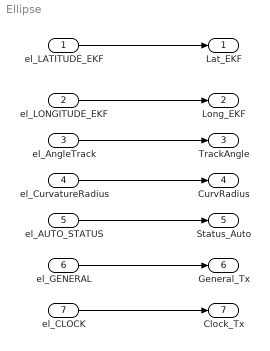
/*
 * Ellipse.c
 *
 * Academic License - for use in teaching, academic research, and meeting
 * course requirements at degree granting institutions only.  Not for
 * government, commercial, or other organizational use.
 *
 * Code generation for model "Ellipse".
 *
 * Model version              : 13.0
 * Simulink Coder version : 23.2 (R2023b) 01-Aug-2023
 * C source code generated on : Tue Apr 23 14:19:23 2024
 *
 * Target selection: irt.tlc
 * Note: GRT includes extra infrastructure and instrumentation for prototyping
 * Embedded hardware selection: Intel->x86-64 (Windows64)
 * Code generation objectives: Unspecified
 * Validation result: Not run
 */

#include "Ellipse.h"
#include <string.h>
#include "rt_nonfinite.h"

/* External inputs (root inport signals with default storage) */
ExtU_Ellipse_T Ellipse_U;

/* External outputs (root outports fed by signals with default storage) */
ExtY_Ellipse_T Ellipse_Y;

/* Real-time model */
static RT_MODEL_Ellipse_T Ellipse_M_;
RT_MODEL_Ellipse_T *const Ellipse_M = &Ellipse_M_;

/* Model output function */
static void Ellipse_output(void)
{
  /* Outport: '<Root>/Lat_EKF' incorporates:
   *  Inport: '<Root>/el_LATITUDE_EKF'
   */
  Ellipse_Y.Lat_EKF = Ellipse_U.el_LATITUDE_EKF;

  /* Outport: '<Root>/Long_EKF' incorporates:
   *  Inport: '<Root>/el_LONGITUDE_EKF'
   */
  Ellipse_Y.Long_EKF = Ellipse_U.el_LONGITUDE_EKF;

  /* Outport: '<Root>/TrackAngle' incorporates:
   *  Inport: '<Root>/el_AngleTrack'
   */
  Ellipse_Y.TrackAngle = Ellipse_U.el_AngleTrack;

  /* Outport: '<Root>/CurvRadius' incorporates:
   *  Inport: '<Root>/el_CurvatureRadius'
   */
  Ellipse_Y.CurvRadius = Ellipse_U.el_CurvatureRadius;

  /* Outport: '<Root>/Status_Auto' incorporates:
   *  Inport: '<Root>/el_AUTO_STATUS'
   */
  Ellipse_Y.Status_Auto = Ellipse_U.el_AUTO_STATUS;
}

/* Model update function */
static void Ellipse_update(void)
{
  /* Update absolute time for base rate */
  /* The "clockTick0" counts the number of times the code of this task has
   * been executed. The absolute time is the multiplication of "clockTick0"
   * and "Timing.stepSize0". Size of "clockTick0" ensures timer will not
   * overflow during the application lifespan selected.
   * Timer of this task consists of two 32 bit unsigned integers.
   * The two integers represent the low bits Timing.clockTick0 and the high bits
   * Timing.clockTickH0. When the low bit overflows to 0, the high bits increment.
   */
  if (!(++Ellipse_M->Timing.clockTick0)) {
    ++Ellipse_M->Timing.clockTickH0;
  }

  Ellipse_M->Timing.t[0] = Ellipse_M->Timing.clockTick0 *
    Ellipse_M->Timing.stepSize0 + Ellipse_M->Timing.clockTickH0 *
    Ellipse_M->Timing.stepSize0 * 4294967296.0;
}
